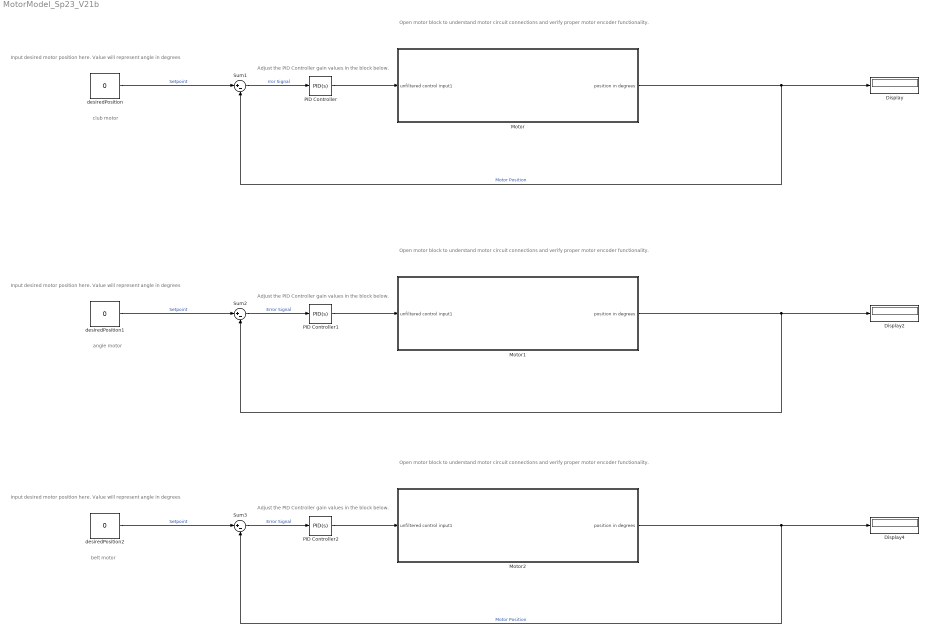
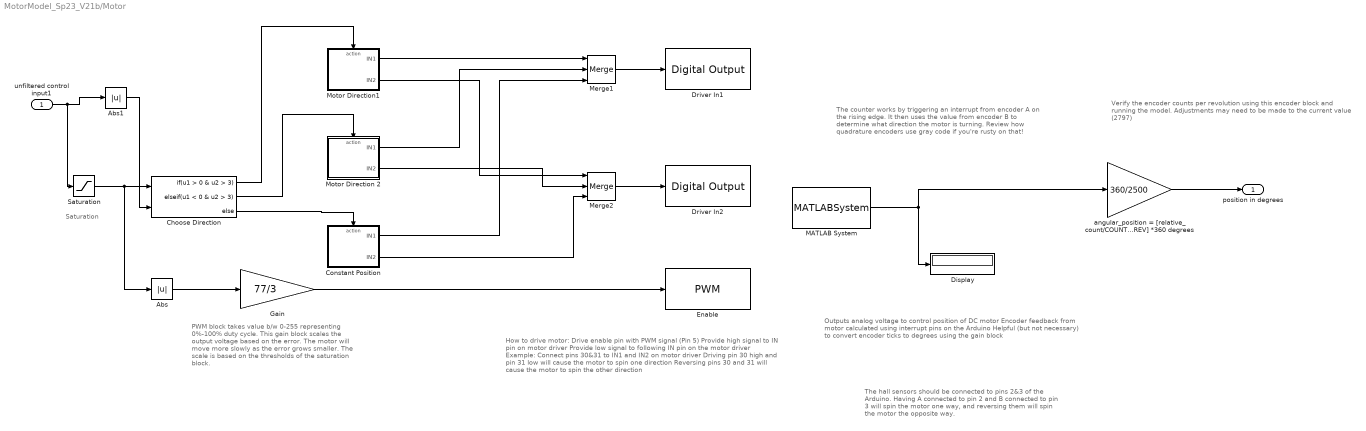
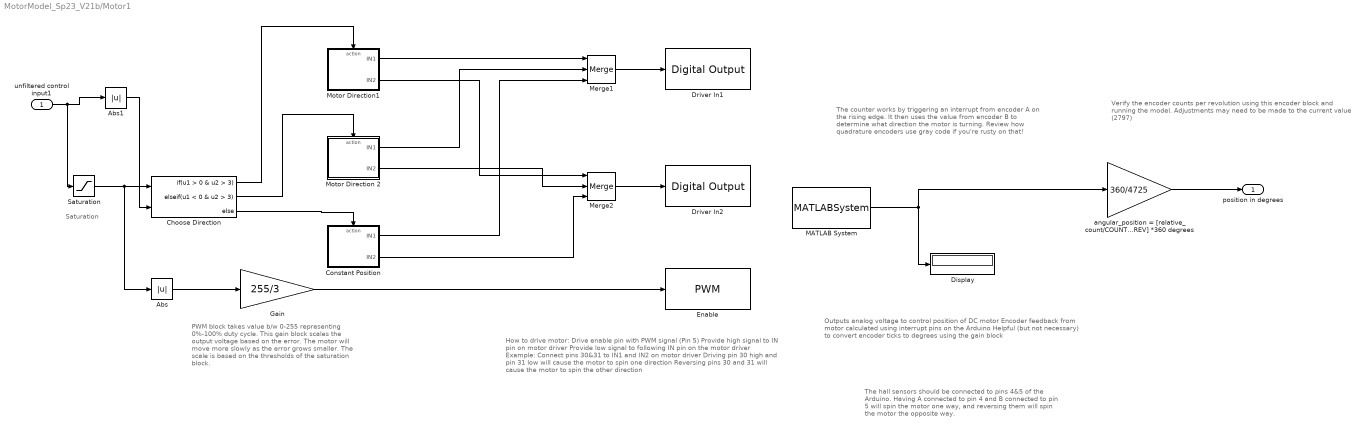
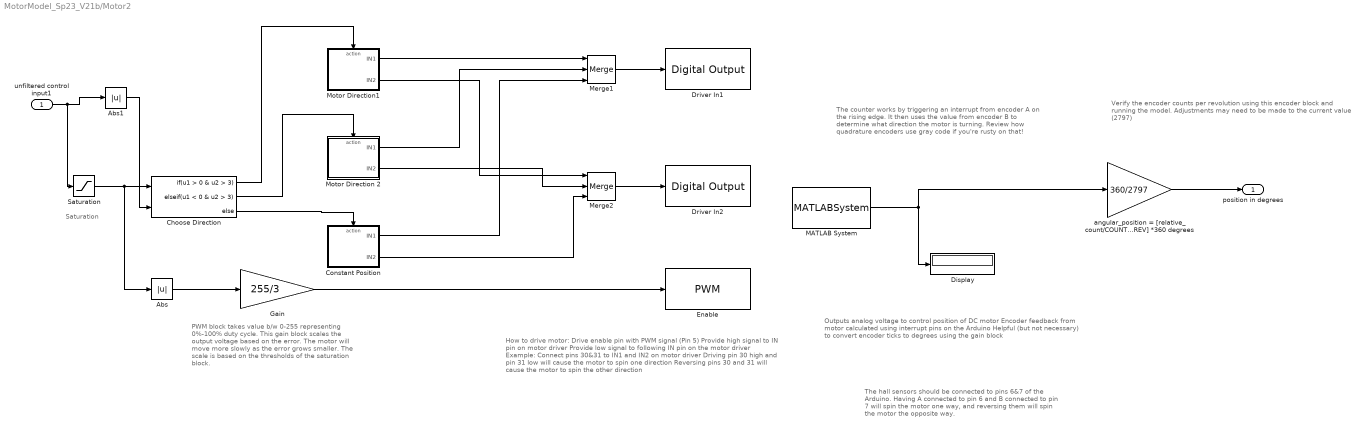
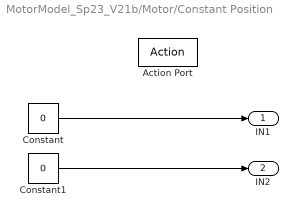
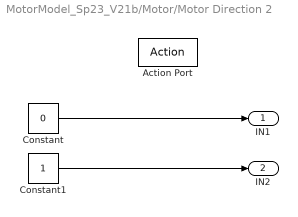
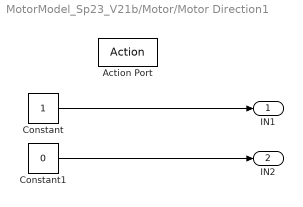
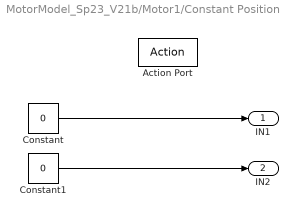
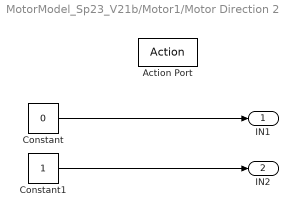
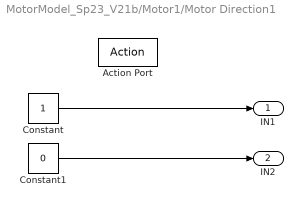
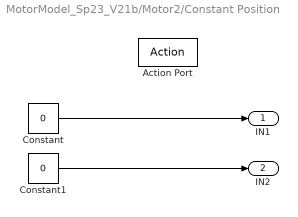
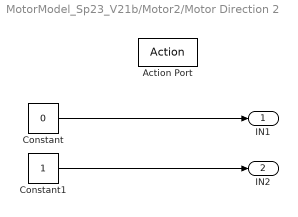
== system MotorModel_Sp23_V21b/Motor2/Motor Direction1 ==
  Action Port : ActionPort  ActionPortLabel=if(u1 > 0 & u2 > 3)
  Constant : Constant
  Constant1 : Constant  Value=0
  IN1 : Outport
  IN2 : Outport  Port=2
  wires:
  Constant/1 -> IN1/1
  Constant1/1 -> IN2/1

/*
 * MotorModel_Sp23_V21b.c
 *
 * Academic License - for use in teaching, academic research, and meeting
 * course requirements at degree granting institutions only.  Not for
 * government, commercial, or other organizational use.
 *
 * Code generation for model "MotorModel_Sp23_V21b".
 *
 * Model version              : 23
 * Simulink Coder version : 9.6 (R2021b) 14-May-2021
 * C source code generated on : Tue Apr 25 17:04:51 2023
 *
 * Target selection: ert.tlc
 * Note: GRT includes extra infrastructure and instrumentation for prototyping
 * Embedded hardware selection: Atmel->AVR
 * Code generation objectives: Unspecified
 * Validation result: Not run
 */

#include "MotorModel_Sp23_V21b.h"
#include "MotorModel_Sp23_V21b_private.h"

/* Block signals (default storage) */
B_MotorModel_Sp23_V21b_T MotorModel_Sp23_V21b_B;

/* Continuous states */
X_MotorModel_Sp23_V21b_T MotorModel_Sp23_V21b_X;

/* Block states (default storage) */
DW_MotorModel_Sp23_V21b_T MotorModel_Sp23_V21b_DW;

/* Real-time model */
static RT_MODEL_MotorModel_Sp23_V21b_T MotorModel_Sp23_V21b_M_;
RT_MODEL_MotorModel_Sp23_V21b_T *const MotorModel_Sp23_V21b_M =
  &MotorModel_Sp23_V21b_M_;
void sMultiWordMul(const uint32_T u1[], int16_T n1, const uint32_T u2[], int16_T
                   n2, uint32_T y[], int16_T n)
{
  uint32_T a0;
  uint32_T a1;
  uint32_T b1;
  uint32_T cb;
  uint32_T cb1;
  uint32_T cb2;
  uint32_T u1i;
  uint32_T w01;
  uint32_T w10;
  uint32_T yk;
  int16_T i;
  int16_T j;
  int16_T k;
  int16_T ni;
  boolean_T isNegative1;
  boolean_T isNegative2;
  isNegative1 = ((u1[n1 - 1] & 2147483648UL) != 0UL);
  isNegative2 = ((u2[n2 - 1] & 2147483648UL) != 0UL);
  cb1 = 1UL;

  /* Initialize output to zero */
  for (k = 0; k < n; k++) {
    y[k] = 0UL;
  }

  for (i = 0; i < n1; i++) {
    cb = 0UL;
    u1i = u1[i];
    if (isNegative1) {
      u1i = ~u1i + cb1;
      cb1 = (uint32_T)(u1i < cb1);
    }

    a1 = u1i >> 16U;
    a0 = u1i & 65535UL;
    cb2 = 1UL;
    ni = n - i;
    ni = n2 <= ni ? n2 : ni;
    k = i;
    for (j = 0; j < ni; j++) {
      u1i = u2[j];
      if (isNegative2) {
        u1i = ~u1i + cb2;
        cb2 = (uint32_T)(u1i < cb2);
      }

      b1 = u1i >> 16U;
      u1i &= 65535UL;
      w10 = a1 * u1i;
      w01 = a0 * b1;
      yk = y[k] + cb;
      cb = (uint32_T)(yk < cb);
      u1i *= a0;
      yk += u1i;
      cb += (yk < u1i);
      u1i = w10 << 16U;
      yk += u1i;
      cb += (yk < u1i);
      u1i = w01 << 16U;
      yk += u1i;
      cb += (yk < u1i);
      y[k] = yk;
      cb += w10 >> 16U;
      cb += w01 >> 16U;
      cb += a1 * b1;
      k++;
    }

    if (k < n) {
      y[k] = cb;
    }
  }

  /* Apply sign */
  if (isNegative1 != isNegative2) {
    cb = 1UL;
    for (k = 0; k < n; k++) {
      yk = ~y[k] + cb;
      y[k] = yk;
      cb = (uint32_T)(yk < cb);
    }
  }
}

real_T sMultiWord2Double(const uint32_T u1[], int16_T n1, int16_T e1)
{
  real_T y;
  uint32_T cb;
  uint32_T u1i;
  int16_T exp_0;
  int16_T i;
  y = 0.0;
  exp_0 = e1;
  if ((u1[n1 - 1] & 2147483648UL) != 0UL) {
    cb = 1UL;
    for (i = 0; i < n1; i++) {
      u1i = ~u1[i];
      cb += u1i;
      y -= ldexp(cb, exp_0);
      cb = (uint32_T)(cb < u1i);
      exp_0 += 32;
    }
  } else {
    for (i = 0; i < n1; i++) {
      y += ldexp(u1[i], exp_0);
      exp_0 += 32;
    }
  }

  return y;
}

/*
 * This function updates continuous states using the ODE3 fixed-step
 * solver algorithm
 */
static void rt_ertODEUpdateContinuousStates(RTWSolverInfo *si )
{
  /* Solver Matrices */
  static const real_T rt_ODE3_A[3] = {
    1.0/2.0, 3.0/4.0, 1.0
  };

  static const real_T rt_ODE3_B[3][3] = {
    { 1.0/2.0, 0.0, 0.0 },

    { 0.0, 3.0/4.0, 0.0 },

    { 2.0/9.0, 1.0/3.0, 4.0/9.0 }
  };

  time_T t = rtsiGetT(si);
  time_T tnew = rtsiGetSolverStopTime(si);
  time_T h = rtsiGetStepSize(si);
  real_T *x = rtsiGetContStates(si);
  ODE3_IntgData *id = (ODE3_IntgData *)rtsiGetSolverData(si);
  real_T *y = id->y;
  real_T *f0 = id->f[0];
  real_T *f1 = id->f[1];
  real_T *f2 = id->f[2];
  real_T hB[3];
  int_T i;
  int_T nXc = 6;
  rtsiSetSimTimeStep(si,MINOR_TIME_STEP);

  /* Save the state values at time t in y, we'll use x as ynew. */
  (void) memcpy(y, x,
                (uint_T)nXc*sizeof(real_T));

  /* Assumes that rtsiSetT and ModelOutputs are up-to-date */
  /* f0 = f(t,y) */
  rtsiSetdX(si, f0);
  MotorModel_Sp23_V21b_derivatives();

  /* f(:,2) = feval(odefile, t + hA(1), y + f*hB(:,1), args(:)(*)); */
  hB[0] = h * rt_ODE3_B[0][0];
  for (i = 0; i < nXc; i++) {
    x[i] = y[i] + (f0[i]*hB[0]);
  }

  rtsiSetT(si, t + h*rt_ODE3_A[0]);
  rtsiSetdX(si, f1);
  MotorModel_Sp23_V21b_step();
  MotorModel_Sp23_V21b_derivatives();

  /* f(:,3) = feval(odefile, t + hA(2), y + f*hB(:,2), args(:)(*)); */
  for (i = 0; i <= 1; i++) {
    hB[i] = h * rt_ODE3_B[1][i];
  }

  for (i = 0; i < nXc; i++) {
    x[i] = y[i] + (f0[i]*hB[0] + f1[i]*hB[1]);
  }

  rtsiSetT(si, t + h*rt_ODE3_A[1]);
  rtsiSetdX(si, f2);
  MotorModel_Sp23_V21b_step();
  MotorModel_Sp23_V21b_derivatives();

  /* tnew = t + hA(3);
     ynew = y + f*hB(:,3); */
  for (i = 0; i <= 2; i++) {
    hB[i] = h * rt_ODE3_B[2][i];
  }

  for (i = 0; i < nXc; i++) {
    x[i] = y[i] + (f0[i]*hB[0] + f1[i]*hB[1] + f2[i]*hB[2]);
  }

  rtsiSetT(si, tnew);
  rtsiSetSimTimeStep(si,MAJOR_TIME_STEP);
}

/*
 * Output and update for action system:
 *    '<S1>/Motor Direction1'
 *    '<S1>/Motor Direction 2'
 *    '<S1>/Constant Position'
 *    '<S2>/Motor Direction1'
 *    '<S2>/Motor Direction 2'
 *    '<S2>/Constant Position'
 *    '<S3>/Motor Direction1'
 *    '<S3>/Motor Direction 2'
 *    '<S3>/Constant Position'
 */
void MotorModel_Sp23_MotorDirection1(RT_MODEL_MotorModel_Sp23_V21b_T * const
  MotorModel_Sp23_V21b_M, real_T *rty_IN1, real_T *rty_IN2,
  P_MotorDirection1_MotorModel__T *localP)
{
  if (rtmIsMajorTimeStep(MotorModel_Sp23_V21b_M)) {
    /* Constant: '<S9>/Constant' */
    *rty_IN1 = localP->Constant_Value;

    /* Constant: '<S9>/Constant1' */
    *rty_IN2 = localP->Constant1_Value;
  }
}

real_T rt_roundd_snf(real_T u)
{
  real_T y;
  if (fabs(u) < 4.503599627370496E+15) {
    if (u >= 0.5) {
      y = floor(u + 0.5);
    } else if (u > -0.5) {
      y = u * 0.0;
    } else {
      y = ceil(u - 0.5);
    }
  } else {
    y = u;
  }

  return y;
}

/* Model step function */
void MotorModel_Sp23_V21b_step(void)
{
  /* local block i/o variables */
  real_T rtb_Merge1;
  real_T rtb_Merge2;
  real_T rtb_Merge1_a;
  real_T rtb_Merge2_b;
  codertarget_arduinobase_inter_T *obj;
  int64m_T *tmp_2;
  uint32_T tmp;
  uint32_T tmp_0;
  uint8_T tmp_1;
  if (rtmIsMajorTimeStep(MotorModel_Sp23_V21b_M)) {
    /* set solver stop time */
    if (!(MotorModel_Sp23_V21b_M->Timing.clockTick0+1)) {
      rtsiSetSolverStopTime(&MotorModel_Sp23_V21b_M->solverInfo,
                            ((MotorModel_Sp23_V21b_M->Timing.clockTickH0 + 1) *
        MotorModel_Sp23_V21b_M->Timing.stepSize0 * 4294967296.0));
    } else {
      rtsiSetSolverStopTime(&MotorModel_Sp23_V21b_M->solverInfo,
                            ((MotorModel_Sp23_V21b_M->Timing.clockTick0 + 1) *
        MotorModel_Sp23_V21b_M->Timing.stepSize0 +
        MotorModel_Sp23_V21b_M->Timing.clockTickH0 *
        MotorModel_Sp23_V21b_M->Timing.stepSize0 * 4294967296.0));
    }
  }                                    /* end MajorTimeStep */

  /* Update absolute time of base rate at minor time step */
  if (rtmIsMinorTimeStep(MotorModel_Sp23_V21b_M)) {
    MotorModel_Sp23_V21b_M->Timing.t[0] = rtsiGetT
      (&MotorModel_Sp23_V21b_M->solverInfo);
  }

  /* Reset subsysRan breadcrumbs */
  srClearBC(MotorModel_Sp23_V21b_DW.MotorDirection1.MotorDirection1_SubsysRanBC);
  if (rtmIsMajorTimeStep(MotorModel_Sp23_V21b_M)) {
    /* MATLABSystem: '<S1>/MATLAB System' */
    if (MotorModel_Sp23_V21b_DW.obj_m.SampleTime !=
        MotorModel_Sp23_V21b_P.MATLABSystem_SampleTime) {
      MotorModel_Sp23_V21b_DW.obj_m.SampleTime =
        MotorModel_Sp23_V21b_P.MATLABSystem_SampleTime;
    }

    /* MATLABSystem: '<S1>/MATLAB System' */
    /*         %% Define output properties */
    /*  Call: int enc_output(int enc) */
    MotorModel_Sp23_V21b_B.MATLABSystem_b = enc_output(0.0);

    /* Gain: '<S1>/angular_position =  [relative_count//COUNTS_PER_REV] *360 degrees' */
    tmp = (uint32_T)MotorModel_Sp23_V21b_P.angular_positionrelative_countC;
    tmp_0 = (uint32_T)MotorModel_Sp23_V21b_B.MATLABSystem_b;
    sMultiWordMul(&tmp, 1, &tmp_0, 1,
                  &MotorModel_Sp23_V21b_B.angular_positionrelative_coun_o.chunks[
                  0U], 2);

    /* Sum: '<Root>/Sum1' incorporates:
     *  Constant: '<Root>/desiredPosition'
     *  Gain: '<S1>/angular_position =  [relative_count//COUNTS_PER_REV] *360 degrees'
     *  Sum: '<Root>/Sum2'
     *  Sum: '<Root>/Sum3'
     */
    tmp_2 = &MotorModel_Sp23_V21b_B.angular_positionrelative_coun_o;
    MotorModel_Sp23_V21b_B.ErrorSignal =
      MotorModel_Sp23_V21b_P.desiredPosition_Value - sMultiWord2Double
      (&tmp_2->chunks[0U], 2, 0) * 1.1641532182693481E-10;

    /* Gain: '<S52>/Proportional Gain' */
    MotorModel_Sp23_V21b_B.ProportionalGain =
      MotorModel_Sp23_V21b_P.PIDController_P *
      MotorModel_Sp23_V21b_B.ErrorSignal;

    /* Gain: '<S41>/Derivative Gain' */
    MotorModel_Sp23_V21b_B.DerivativeGain =
      MotorModel_Sp23_V21b_P.PIDController_D *
      MotorModel_Sp23_V21b_B.ErrorSignal;
  }

  /* Gain: '<S50>/Filter Coefficient' incorporates:
   *  Integrator: '<S42>/Filter'
   *  Sum: '<S42>/SumD'
   */
  MotorModel_Sp23_V21b_B.FilterCoefficient =
    (MotorModel_Sp23_V21b_B.DerivativeGain -
     MotorModel_Sp23_V21b_X.Filter_CSTATE) *
    MotorModel_Sp23_V21b_P.PIDController_N;

  /* Sum: '<S56>/Sum' incorporates:
   *  Integrator: '<S47>/Integrator'
   */
  MotorModel_Sp23_V21b_B.Abs1 = (MotorModel_Sp23_V21b_B.ProportionalGain +
    MotorModel_Sp23_V21b_X.Integrator_CSTATE) +
    MotorModel_Sp23_V21b_B.FilterCoefficient;

  /* Abs: '<S1>/Abs1' */
  MotorModel_Sp23_V21b_B.Abs = fabs(MotorModel_Sp23_V21b_B.Abs1);

  /* Saturate: '<S1>/Saturation' */
  if (MotorModel_Sp23_V21b_B.Abs1 > MotorModel_Sp23_V21b_P.Saturation_UpperSat)
  {
    MotorModel_Sp23_V21b_B.Abs1 = MotorModel_Sp23_V21b_P.Saturation_UpperSat;
  } else if (MotorModel_Sp23_V21b_B.Abs1 <
             MotorModel_Sp23_V21b_P.Saturation_LowerSat) {
    MotorModel_Sp23_V21b_B.Abs1 = MotorModel_Sp23_V21b_P.Saturation_LowerSat;
  }

  /* End of Saturate: '<S1>/Saturation' */

  /* If: '<S1>/Choose Direction' */
  if (rtmIsMajorTimeStep(MotorModel_Sp23_V21b_M)) {
    if ((MotorModel_Sp23_V21b_B.Abs1 > 0.0) && (MotorModel_Sp23_V21b_B.Abs > 3.0))
    {
      MotorModel_Sp23_V21b_DW.ChooseDirection_ActiveSubsystem = 0;
    } else if ((MotorModel_Sp23_V21b_B.Abs1 < 0.0) &&
               (MotorModel_Sp23_V21b_B.Abs > 3.0)) {
      MotorModel_Sp23_V21b_DW.ChooseDirection_ActiveSubsystem = 1;
    } else {
      MotorModel_Sp23_V21b_DW.ChooseDirection_ActiveSubsystem = 2;
    }
  }

  switch (MotorModel_Sp23_V21b_DW.ChooseDirection_ActiveSubsystem) {
   case 0:
    /* Outputs for IfAction SubSystem: '<S1>/Motor Direction1' incorporates:
     *  ActionPort: '<S9>/Action Port'
     */
    MotorModel_Sp23_MotorDirection1(MotorModel_Sp23_V21b_M, &rtb_Merge1,
      &rtb_Merge2, &MotorModel_Sp23_V21b_P.MotorDirection1);
    if (rtmIsMajorTimeStep(MotorModel_Sp23_V21b_M)) {
      srUpdateBC
        (MotorModel_Sp23_V21b_DW.MotorDirection1.MotorDirection1_SubsysRanBC);
    }

    /* End of Outputs for SubSystem: '<S1>/Motor Direction1' */
    break;

   case 1:
    /* Outputs for IfAction SubSystem: '<S1>/Motor Direction 2' incorporates:
     *  ActionPort: '<S8>/Action Port'
     */
    MotorModel_Sp23_MotorDirection1(MotorModel_Sp23_V21b_M, &rtb_Merge1,
      &rtb_Merge2, &MotorModel_Sp23_V21b_P.MotorDirection2);
    if (rtmIsMajorTimeStep(MotorModel_Sp23_V21b_M)) {
      srUpdateBC
        (MotorModel_Sp23_V21b_DW.MotorDirection2.MotorDirection1_SubsysRanBC);
    }

    /* End of Outputs for SubSystem: '<S1>/Motor Direction 2' */
    break;

   case 2:
    /* Outputs for IfAction SubSystem: '<S1>/Constant Position' incorporates:
     *  ActionPort: '<S7>/Action Port'
     */
    MotorModel_Sp23_MotorDirection1(MotorModel_Sp23_V21b_M, &rtb_Merge1,
      &rtb_Merge2, &MotorModel_Sp23_V21b_P.ConstantPosition);
    if (rtmIsMajorTimeStep(MotorModel_Sp23_V21b_M)) {
      srUpdateBC
        (MotorModel_Sp23_V21b_DW.ConstantPosition.MotorDirection1_SubsysRanBC);
    }

    /* End of Outputs for SubSystem: '<S1>/Constant Position' */
    break;
  }

  /* End of If: '<S1>/Choose Direction' */

  /* MATLABSystem: '<S1>/Enable' */
  obj = &MotorModel_Sp23_V21b_DW.obj_bm;
  obj->PWMDriverObj.MW_PWM_HANDLE = MW_PWM_GetHandle(5UL);

  /* Gain: '<S1>/Gain' incorporates:
   *  Abs: '<S1>/Abs'
   */
  MotorModel_Sp23_V21b_B.Abs1 = MotorModel_Sp23_V21b_P.Gain_Gain * fabs
    (MotorModel_Sp23_V21b_B.Abs1);

  /* MATLABSystem: '<S1>/Enable' */
  if (!(MotorModel_Sp23_V21b_B.Abs1 <= 255.0)) {
    MotorModel_Sp23_V21b_B.Abs1 = 255.0;
  }

  if (!(MotorModel_Sp23_V21b_B.Abs1 >= 0.0)) {
    MotorModel_Sp23_V21b_B.Abs1 = 0.0;
  }

  MW_PWM_SetDutyCycle(MotorModel_Sp23_V21b_DW.obj_bm.PWMDriverObj.MW_PWM_HANDLE,
                      MotorModel_Sp23_V21b_B.Abs1);
  if (rtmIsMajorTimeStep(MotorModel_Sp23_V21b_M)) {
    /* Gain: '<S44>/Integral Gain' */
    MotorModel_Sp23_V21b_B.IntegralGain = MotorModel_Sp23_V21b_P.PIDController_I
      * MotorModel_Sp23_V21b_B.ErrorSignal;

    /* MATLABSystem: '<S1>/Driver In1' */
    MotorModel_Sp23_V21b_B.ErrorSignal = rt_roundd_snf(rtb_Merge1);
    if (MotorModel_Sp23_V21b_B.ErrorSignal < 256.0) {
      if (MotorModel_Sp23_V21b_B.ErrorSignal >= 0.0) {
        tmp_1 = (uint8_T)MotorModel_Sp23_V21b_B.ErrorSignal;
      } else {
        tmp_1 = 0U;
      }
    } else {
      tmp_1 = MAX_uint8_T;
    }

    writeDigitalPin(30, tmp_1);

    /* End of MATLABSystem: '<S1>/Driver In1' */

    /* MATLABSystem: '<S1>/Driver In2' */
    MotorModel_Sp23_V21b_B.ErrorSignal = rt_roundd_snf(rtb_Merge2);
    if (MotorModel_Sp23_V21b_B.ErrorSignal < 256.0) {
      if (MotorModel_Sp23_V21b_B.ErrorSignal >= 0.0) {
        tmp_1 = (uint8_T)MotorModel_Sp23_V21b_B.ErrorSignal;
      } else {
        tmp_1 = 0U;
      }
    } else {
      tmp_1 = MAX_uint8_T;
    }

    writeDigitalPin(31, tmp_1);

    /* End of MATLABSystem: '<S1>/Driver In2' */

    /* MATLABSystem: '<S2>/MATLAB System' */
    if (MotorModel_Sp23_V21b_DW.obj_p.SampleTime !=
        MotorModel_Sp23_V21b_P.MATLABSystem_SampleTime_l) {
      MotorModel_Sp23_V21b_DW.obj_p.SampleTime =
        MotorModel_Sp23_V21b_P.MATLABSystem_SampleTime_l;
    }

    /* MATLABSystem: '<S2>/MATLAB System' */
    /*         %% Define output properties */
    /*  Call: int enc_output(int enc) */
    MotorModel_Sp23_V21b_B.MATLABSystem_d = enc_output(1.0);

    /* Gain: '<S2>/angular_position =  [relative_count//COUNTS_PER_REV] *360 degrees' */
    tmp = (uint32_T)MotorModel_Sp23_V21b_P.angular_positionrelative_coun_c;
    tmp_0 = (uint32_T)MotorModel_Sp23_V21b_B.MATLABSystem_d;
    sMultiWordMul(&tmp, 1, &tmp_0, 1,
                  &MotorModel_Sp23_V21b_B.angular_positionrelative_countC.chunks[
                  0U], 2);

    /* Sum: '<Root>/Sum2' incorporates:
     *  Constant: '<Root>/desiredPosition1'
     *  Gain: '<S2>/angular_position =  [relative_count//COUNTS_PER_REV] *360 degrees'
     *  Sum: '<Root>/Sum1'
     *  Sum: '<Root>/Sum3'
     */
    tmp_2 = &MotorModel_Sp23_V21b_B.angular_positionrelative_countC;
    MotorModel_Sp23_V21b_B.ErrorSignal =
      MotorModel_Sp23_V21b_P.desiredPosition1_Value - sMultiWord2Double
      (&tmp_2->chunks[0U], 2, 0) * 5.8207660913467407E-11;

    /* Gain: '<S100>/Proportional Gain' */
    MotorModel_Sp23_V21b_B.ProportionalGain_f =
      MotorModel_Sp23_V21b_P.PIDController1_P *
      MotorModel_Sp23_V21b_B.ErrorSignal;

    /* Gain: '<S89>/Derivative Gain' */
    MotorModel_Sp23_V21b_B.DerivativeGain_e =
      MotorModel_Sp23_V21b_P.PIDController1_D *
      MotorModel_Sp23_V21b_B.ErrorSignal;
  }

  /* Gain: '<S98>/Filter Coefficient' incorporates:
   *  Integrator: '<S90>/Filter'
   *  Sum: '<S90>/SumD'
   */
  MotorModel_Sp23_V21b_B.FilterCoefficient_g =
    (MotorModel_Sp23_V21b_B.DerivativeGain_e -
     MotorModel_Sp23_V21b_X.Filter_CSTATE_f) *
    MotorModel_Sp23_V21b_P.PIDController1_N;

  /* Sum: '<S104>/Sum' incorporates:
   *  Integrator: '<S95>/Integrator'
   */
  MotorModel_Sp23_V21b_B.Abs = (MotorModel_Sp23_V21b_B.ProportionalGain_f +
    MotorModel_Sp23_V21b_X.Integrator_CSTATE_g) +
    MotorModel_Sp23_V21b_B.FilterCoefficient_g;

  /* Abs: '<S2>/Abs1' */
  MotorModel_Sp23_V21b_B.Abs1 = fabs(MotorModel_Sp23_V21b_B.Abs);

  /* Saturate: '<S2>/Saturation' */
  if (MotorModel_Sp23_V21b_B.Abs > MotorModel_Sp23_V21b_P.Saturation_UpperSat_c)
  {
    MotorModel_Sp23_V21b_B.Abs = MotorModel_Sp23_V21b_P.Saturation_UpperSat_c;
  } else if (MotorModel_Sp23_V21b_B.Abs <
             MotorModel_Sp23_V21b_P.Saturation_LowerSat_a) {
    MotorModel_Sp23_V21b_B.Abs = MotorModel_Sp23_V21b_P.Saturation_LowerSat_a;
  }

  /* End of Saturate: '<S2>/Saturation' */

  /* If: '<S2>/Choose Direction' */
  if (rtmIsMajorTimeStep(MotorModel_Sp23_V21b_M)) {
    if ((MotorModel_Sp23_V21b_B.Abs > 0.0) && (MotorModel_Sp23_V21b_B.Abs1 > 3.0))
    {
      MotorModel_Sp23_V21b_DW.ChooseDirection_ActiveSubsyst_m = 0;
    } else if ((MotorModel_Sp23_V21b_B.Abs < 0.0) &&
               (MotorModel_Sp23_V21b_B.Abs1 > 3.0)) {
      MotorModel_Sp23_V21b_DW.ChooseDirection_ActiveSubsyst_m = 1;
    } else {
      MotorModel_Sp23_V21b_DW.ChooseDirection_ActiveSubsyst_m = 2;
    }
  }

  switch (MotorModel_Sp23_V21b_DW.ChooseDirection_ActiveSubsyst_m) {
   case 0:
    /* Outputs for IfAction SubSystem: '<S2>/Motor Direction1' incorporates:
     *  ActionPort: '<S12>/Action Port'
     */
    MotorModel_Sp23_MotorDirection1(MotorModel_Sp23_V21b_M, &rtb_Merge1_a,
      &rtb_Merge2_b, &MotorModel_Sp23_V21b_P.MotorDirection1_l);
    if (rtmIsMajorTimeStep(MotorModel_Sp23_V21b_M)) {
      srUpdateBC
        (MotorModel_Sp23_V21b_DW.MotorDirection1_l.MotorDirection1_SubsysRanBC);
    }

    /* End of Outputs for SubSystem: '<S2>/Motor Direction1' */
    break;

   case 1:
    /* Outputs for IfAction SubSystem: '<S2>/Motor Direction 2' incorporates:
     *  ActionPort: '<S11>/Action Port'
     */
    MotorModel_Sp23_MotorDirection1(MotorModel_Sp23_V21b_M, &rtb_Merge1_a,
      &rtb_Merge2_b, &MotorModel_Sp23_V21b_P.MotorDirection2_a);
    if (rtmIsMajorTimeStep(MotorModel_Sp23_V21b_M)) {
      srUpdateBC
        (MotorModel_Sp23_V21b_DW.MotorDirection2_a.MotorDirection1_SubsysRanBC);
    }

    /* End of Outputs for SubSystem: '<S2>/Motor Direction 2' */
    break;

   case 2:
    /* Outputs for IfAction SubSystem: '<S2>/Constant Position' incorporates:
     *  ActionPort: '<S10>/Action Port'
     */
    MotorModel_Sp23_MotorDirection1(MotorModel_Sp23_V21b_M, &rtb_Merge1_a,
      &rtb_Merge2_b, &MotorModel_Sp23_V21b_P.ConstantPosition_f);
    if (rtmIsMajorTimeStep(MotorModel_Sp23_V21b_M)) {
      srUpdateBC
        (MotorModel_Sp23_V21b_DW.ConstantPosition_f.MotorDirection1_SubsysRanBC);
    }

    /* End of Outputs for SubSystem: '<S2>/Constant Position' */
    break;
  }

  /* End of If: '<S2>/Choose Direction' */

  /* MATLABSystem: '<S2>/Enable' */
  obj = &MotorModel_Sp23_V21b_DW.obj_lb;
  obj->PWMDriverObj.MW_PWM_HANDLE = MW_PWM_GetHandle(6UL);

  /* Gain: '<S2>/Gain' incorporates:
   *  Abs: '<S2>/Abs'
   */
  MotorModel_Sp23_V21b_B.Abs1 = MotorModel_Sp23_V21b_P.Gain_Gain_c * fabs
    (MotorModel_Sp23_V21b_B.Abs);

  /* MATLABSystem: '<S2>/Enable' */
  if (!(MotorModel_Sp23_V21b_B.Abs1 <= 255.0)) {
    MotorModel_Sp23_V21b_B.Abs1 = 255.0;
  }

  if (!(MotorModel_Sp23_V21b_B.Abs1 >= 0.0)) {
    MotorModel_Sp23_V21b_B.Abs1 = 0.0;
  }

  MW_PWM_SetDutyCycle(MotorModel_Sp23_V21b_DW.obj_lb.PWMDriverObj.MW_PWM_HANDLE,
                      MotorModel_Sp23_V21b_B.Abs1);
  if (rtmIsMajorTimeStep(MotorModel_Sp23_V21b_M)) {
    /* Gain: '<S92>/Integral Gain' */
    MotorModel_Sp23_V21b_B.IntegralGain_b =
      MotorModel_Sp23_V21b_P.PIDController1_I *
      MotorModel_Sp23_V21b_B.ErrorSignal;

    /* MATLABSystem: '<S2>/Driver In1' */
    MotorModel_Sp23_V21b_B.ErrorSignal = rt_roundd_snf(rtb_Merge1_a);
    if (MotorModel_Sp23_V21b_B.ErrorSignal < 256.0) {
      if (MotorModel_Sp23_V21b_B.ErrorSignal >= 0.0) {
        tmp_1 = (uint8_T)MotorModel_Sp23_V21b_B.ErrorSignal;
      } else {
        tmp_1 = 0U;
      }
    } else {
      tmp_1 = MAX_uint8_T;
    }

    writeDigitalPin(32, tmp_1);

    /* End of MATLABSystem: '<S2>/Driver In1' */

    /* MATLABSystem: '<S2>/Driver In2' */
    MotorModel_Sp23_V21b_B.ErrorSignal = rt_roundd_snf(rtb_Merge2_b);
    if (MotorModel_Sp23_V21b_B.ErrorSignal < 256.0) {
      if (MotorModel_Sp23_V21b_B.ErrorSignal >= 0.0) {
        tmp_1 = (uint8_T)MotorModel_Sp23_V21b_B.ErrorSignal;
      } else {
        tmp_1 = 0U;
      }
    } else {
      tmp_1 = MAX_uint8_T;
    }

    writeDigitalPin(33, tmp_1);

    /* End of MATLABSystem: '<S2>/Driver In2' */

    /* MATLABSystem: '<S3>/MATLAB System' */
    if (MotorModel_Sp23_V21b_DW.obj.SampleTime !=
        MotorModel_Sp23_V21b_P.MATLABSystem_SampleTime_p) {
      MotorModel_Sp23_V21b_DW.obj.SampleTime =
        MotorModel_Sp23_V21b_P.MATLABSystem_SampleTime_p;
    }

    /* MATLABSystem: '<S3>/MATLAB System' */
    /*         %% Define output properties */
    /*  Call: int enc_output(int enc) */
    MotorModel_Sp23_V21b_B.MATLABSystem = enc_output(2.0);

    /* Gain: '<S3>/angular_position =  [relative_count//COUNTS_PER_REV] *360 degrees' */
    tmp = (uint32_T)MotorModel_Sp23_V21b_P.angular_positionrelative_coun_f;
    tmp_0 = (uint32_T)MotorModel_Sp23_V21b_B.MATLABSystem;
    sMultiWordMul(&tmp, 1, &tmp_0, 1,
                  &MotorModel_Sp23_V21b_B.angular_positionrelative_coun_j.chunks[
                  0U], 2);

    /* Sum: '<Root>/Sum3' incorporates:
     *  Constant: '<Root>/desiredPosition2'
     *  Gain: '<S3>/angular_position =  [relative_count//COUNTS_PER_REV] *360 degrees'
     *  Sum: '<Root>/Sum1'
     *  Sum: '<Root>/Sum2'
     */
    tmp_2 = &MotorModel_Sp23_V21b_B.angular_positionrelative_coun_j;
    MotorModel_Sp23_V21b_B.ErrorSignal =
      MotorModel_Sp23_V21b_P.desiredPosition2_Value - sMultiWord2Double
      (&tmp_2->chunks[0U], 2, 0) * 1.1641532182693481E-10;

    /* Gain: '<S148>/Proportional Gain' */
    MotorModel_Sp23_V21b_B.ProportionalGain_c =
      MotorModel_Sp23_V21b_P.PIDController2_P *
      MotorModel_Sp23_V21b_B.ErrorSignal;

    /* Gain: '<S137>/Derivative Gain' */
    MotorModel_Sp23_V21b_B.DerivativeGain_n =
      MotorModel_Sp23_V21b_P.PIDController2_D *
      MotorModel_Sp23_V21b_B.ErrorSignal;
  }

  /* Gain: '<S146>/Filter Coefficient' incorporates:
   *  Integrator: '<S138>/Filter'
   *  Sum: '<S138>/SumD'
   */
  MotorModel_Sp23_V21b_B.FilterCoefficient_e =
    (MotorModel_Sp23_V21b_B.DerivativeGain_n -
     MotorModel_Sp23_V21b_X.Filter_CSTATE_c) *
    MotorModel_Sp23_V21b_P.PIDController2_N;

  /* Sum: '<S152>/Sum' incorporates:
   *  Integrator: '<S143>/Integrator'
   */
  MotorModel_Sp23_V21b_B.Abs = (MotorModel_Sp23_V21b_B.ProportionalGain_c +
    MotorModel_Sp23_V21b_X.Integrator_CSTATE_f) +
    MotorModel_Sp23_V21b_B.FilterCoefficient_e;

  /* Abs: '<S3>/Abs1' */
  MotorModel_Sp23_V21b_B.Abs1 = fabs(MotorModel_Sp23_V21b_B.Abs);

  /* Saturate: '<S3>/Saturation' */
  if (MotorModel_Sp23_V21b_B.Abs > MotorModel_Sp23_V21b_P.Saturation_UpperSat_m)
  {
    MotorModel_Sp23_V21b_B.Abs = MotorModel_Sp23_V21b_P.Saturation_UpperSat_m;
  } else if (MotorModel_Sp23_V21b_B.Abs <
             MotorModel_Sp23_V21b_P.Saturation_LowerSat_g) {
    MotorModel_Sp23_V21b_B.Abs = MotorModel_Sp23_V21b_P.Saturation_LowerSat_g;
  }

  /* End of Saturate: '<S3>/Saturation' */

  /* If: '<S3>/Choose Direction' */
  if (rtmIsMajorTimeStep(MotorModel_Sp23_V21b_M)) {
    if ((MotorModel_Sp23_V21b_B.Abs > 0.0) && (MotorModel_Sp23_V21b_B.Abs1 > 3.0))
    {
      MotorModel_Sp23_V21b_DW.ChooseDirection_ActiveSubsyst_p = 0;
    } else if ((MotorModel_Sp23_V21b_B.Abs < 0.0) &&
               (MotorModel_Sp23_V21b_B.Abs1 > 3.0)) {
      MotorModel_Sp23_V21b_DW.ChooseDirection_ActiveSubsyst_p = 1;
    } else {
      MotorModel_Sp23_V21b_DW.ChooseDirection_ActiveSubsyst_p = 2;
    }
  }

  switch (MotorModel_Sp23_V21b_DW.ChooseDirection_ActiveSubsyst_p) {
   case 0:
    /* Outputs for IfAction SubSystem: '<S3>/Motor Direction1' incorporates:
     *  ActionPort: '<S15>/Action Port'
     */
    MotorModel_Sp23_MotorDirection1(MotorModel_Sp23_V21b_M,
      &MotorModel_Sp23_V21b_B.Merge1_n, &MotorModel_Sp23_V21b_B.Merge2_m,
      &MotorModel_Sp23_V21b_P.MotorDirection1_i);
    if (rtmIsMajorTimeStep(MotorModel_Sp23_V21b_M)) {
      srUpdateBC
        (MotorModel_Sp23_V21b_DW.MotorDirection1_i.MotorDirection1_SubsysRanBC);
    }

    /* End of Outputs for SubSystem: '<S3>/Motor Direction1' */
    break;

   case 1:
    /* Outputs for IfAction SubSystem: '<S3>/Motor Direction 2' incorporates:
     *  ActionPort: '<S14>/Action Port'
     */
    MotorModel_Sp23_MotorDirection1(MotorModel_Sp23_V21b_M,
      &MotorModel_Sp23_V21b_B.Merge1_n, &MotorModel_Sp23_V21b_B.Merge2_m,
      &MotorModel_Sp23_V21b_P.MotorDirection2_h);
    if (rtmIsMajorTimeStep(MotorModel_Sp23_V21b_M)) {
      srUpdateBC
        (MotorModel_Sp23_V21b_DW.MotorDirection2_h.MotorDirection1_SubsysRanBC);
    }

    /* End of Outputs for SubSystem: '<S3>/Motor Direction 2' */
    break;

   case 2:
    /* Outputs for IfAction SubSystem: '<S3>/Constant Position' incorporates:
     *  ActionPort: '<S13>/Action Port'
     */
    MotorModel_Sp23_MotorDirection1(MotorModel_Sp23_V21b_M,
      &MotorModel_Sp23_V21b_B.Merge1_n, &MotorModel_Sp23_V21b_B.Merge2_m,
      &MotorModel_Sp23_V21b_P.ConstantPosition_b);
    if (rtmIsMajorTimeStep(MotorModel_Sp23_V21b_M)) {
      srUpdateBC
        (MotorModel_Sp23_V21b_DW.ConstantPosition_b.MotorDirection1_SubsysRanBC);
    }

    /* End of Outputs for SubSystem: '<S3>/Constant Position' */
    break;
  }

  /* End of If: '<S3>/Choose Direction' */

  /* MATLABSystem: '<S3>/Enable' */
  obj = &MotorModel_Sp23_V21b_DW.obj_d;
  obj->PWMDriverObj.MW_PWM_HANDLE = MW_PWM_GetHandle(10UL);

  /* Gain: '<S3>/Gain' incorporates:
   *  Abs: '<S3>/Abs'
   */
  MotorModel_Sp23_V21b_B.Abs1 = MotorModel_Sp23_V21b_P.Gain_Gain_h * fabs
    (MotorModel_Sp23_V21b_B.Abs);

  /* MATLABSystem: '<S3>/Enable' */
  if (!(MotorModel_Sp23_V21b_B.Abs1 <= 255.0)) {
    MotorModel_Sp23_V21b_B.Abs1 = 255.0;
  }

  if (!(MotorModel_Sp23_V21b_B.Abs1 >= 0.0)) {
    MotorModel_Sp23_V21b_B.Abs1 = 0.0;
  }

  MW_PWM_SetDutyCycle(MotorModel_Sp23_V21b_DW.obj_d.PWMDriverObj.MW_PWM_HANDLE,
                      MotorModel_Sp23_V21b_B.Abs1);
  if (rtmIsMajorTimeStep(MotorModel_Sp23_V21b_M)) {
    /* Gain: '<S140>/Integral Gain' */
    MotorModel_Sp23_V21b_B.IntegralGain_h =
      MotorModel_Sp23_V21b_P.PIDController2_I *
      MotorModel_Sp23_V21b_B.ErrorSignal;

    /* MATLABSystem: '<S3>/Driver In1' */
    MotorModel_Sp23_V21b_B.ErrorSignal = rt_roundd_snf
      (MotorModel_Sp23_V21b_B.Merge1_n);
    if (MotorModel_Sp23_V21b_B.ErrorSignal < 256.0) {
      if (MotorModel_Sp23_V21b_B.ErrorSignal >= 0.0) {
        tmp_1 = (uint8_T)MotorModel_Sp23_V21b_B.ErrorSignal;
      } else {
        tmp_1 = 0U;
      }
    } else {
      tmp_1 = MAX_uint8_T;
    }

    writeDigitalPin(34, tmp_1);

    /* End of MATLABSystem: '<S3>/Driver In1' */

    /* MATLABSystem: '<S3>/Driver In2' */
    MotorModel_Sp23_V21b_B.ErrorSignal = rt_roundd_snf
      (MotorModel_Sp23_V21b_B.Merge2_m);
    if (MotorModel_Sp23_V21b_B.ErrorSignal < 256.0) {
      if (MotorModel_Sp23_V21b_B.ErrorSignal >= 0.0) {
        tmp_1 = (uint8_T)MotorModel_Sp23_V21b_B.ErrorSignal;
      } else {
        tmp_1 = 0U;
      }
    } else {
      tmp_1 = MAX_uint8_T;
    }

    writeDigitalPin(35, tmp_1);

    /* End of MATLABSystem: '<S3>/Driver In2' */
  }

  if (rtmIsMajorTimeStep(MotorModel_Sp23_V21b_M)) {
    {                                  /* Sample time: [0.0s, 0.0s] */
      extmodeErrorCode_T errorCode = EXTMODE_SUCCESS;
      extmodeSimulationTime_T currentTime = (extmodeSimulationTime_T)
        (((MotorModel_Sp23_V21b_M->Timing.clockTick0+
           MotorModel_Sp23_V21b_M->Timing.clockTickH0* 4294967296.0) * 1) + 0)
        ;

      /* Trigger External Mode event */
      errorCode = extmodeEvent(0,currentTime);
      if (errorCode != EXTMODE_SUCCESS) {
        /* Code to handle External Mode event errors
           may be added here */
      }
    }

    if (rtmIsMajorTimeStep(MotorModel_Sp23_V21b_M)) {/* Sample time: [0.001s, 0.0s] */
      extmodeErrorCode_T errorCode = EXTMODE_SUCCESS;
      extmodeSimulationTime_T currentTime = (extmodeSimulationTime_T)
        (((MotorModel_Sp23_V21b_M->Timing.clockTick1+
           MotorModel_Sp23_V21b_M->Timing.clockTickH1* 4294967296.0) * 1) + 0)
        ;

      /* Trigger External Mode event */
      errorCode = extmodeEvent(1,currentTime);
      if (errorCode != EXTMODE_SUCCESS) {
        /* Code to handle External Mode event errors
           may be added here */
      }
    }
  }                                    /* end MajorTimeStep */

  if (rtmIsMajorTimeStep(MotorModel_Sp23_V21b_M)) {
    rt_ertODEUpdateContinuousStates(&MotorModel_Sp23_V21b_M->solverInfo);

    /* Update absolute time for base rate */
    /* The "clockTick0" counts the number of times the code of this task has
     * been executed. The absolute time is the multiplication of "clockTick0"
     * and "Timing.stepSize0". Size of "clockTick0" ensures timer will not
     * overflow during the application lifespan selected.
     * Timer of this task consists of two 32 bit unsigned integers.
     * The two integers represent the low bits Timing.clockTick0 and the high bits
     * Timing.clockTickH0. When the low bit overflows to 0, the high bits increment.
     */
    if (!(++MotorModel_Sp23_V21b_M->Timing.clockTick0)) {
      ++MotorModel_Sp23_V21b_M->Timing.clockTickH0;
    }

    MotorModel_Sp23_V21b_M->Timing.t[0] = rtsiGetSolverStopTime
      (&MotorModel_Sp23_V21b_M->solverInfo);

    {
      /* Update absolute timer for sample time: [0.001s, 0.0s] */
      /* The "clockTick1" counts the number of times the code of this task has
       * been executed. The resolution of this integer timer is 0.001, which is the step size
       * of the task. Size of "clockTick1" ensures timer will not overflow during the
       * application lifespan selected.
       * Timer of this task consists of two 32 bit unsigned integers.
       * The two integers represent the low bits Timing.clockTick1 and the high bits
       * Timing.clockTickH1. When the low bit overflows to 0, the high bits increment.
       */
      MotorModel_Sp23_V21b_M->Timing.clockTick1++;
      if (!MotorModel_Sp23_V21b_M->Timing.clockTick1) {
        MotorModel_Sp23_V21b_M->Timing.clockTickH1++;
      }
    }
  }                                    /* end MajorTimeStep */
}
